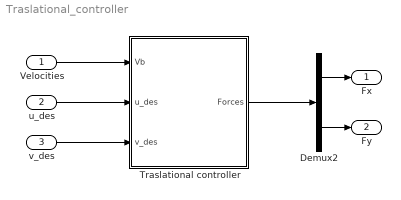
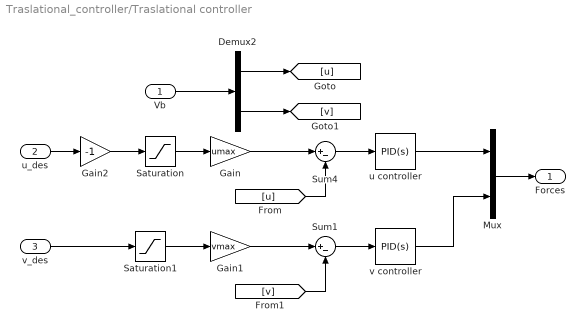
/*
 * Traslational_controller.cpp
 *
 * Academic License - for use in teaching, academic research, and meeting
 * course requirements at degree granting institutions only.  Not for
 * government, commercial, or other organizational use.
 *
 * Code generation for model "Traslational_controller".
 *
 * Model version              : 1.130
 * Simulink Coder version : 8.10 (R2016a) 10-Feb-2016
 * C++ source code generated on : Mon Aug 29 15:20:29 2016
 *
 * Target selection: grt.tlc
 * Note: GRT includes extra infrastructure and instrumentation for prototyping
 * Embedded hardware selection: ARM Compatible->ARM Cortex
 * Code generation objective: Execution efficiency
 * Validation result: Not run
 */

#include "Traslational_controller.h"
#include "Traslational_controller_private.h"

/*
 * This function updates continuous states using the ODE2 fixed-step
 * solver algorithm
 */
void Traslational_controllerModelClass::rt_ertODEUpdateContinuousStates
  (RTWSolverInfo *si )
{
  time_T tnew = rtsiGetSolverStopTime(si);
  time_T h = rtsiGetStepSize(si);
  real_T *x = rtsiGetContStates(si);
  ODE2_IntgData *id = (ODE2_IntgData *)rtsiGetSolverData(si);
  real_T *y = id->y;
  real_T *f0 = id->f[0];
  real_T *f1 = id->f[1];
  real_T temp;
  int_T i;
  int_T nXc = 4;
  rtsiSetSimTimeStep(si,MINOR_TIME_STEP);

  /* Save the state values at time t in y, we'll use x as ynew. */
  (void) memcpy(y, x,
                (uint_T)nXc*sizeof(real_T));

  /* Assumes that rtsiSetT and ModelOutputs are up-to-date */
  /* f0 = f(t,y) */
  rtsiSetdX(si, f0);
  Traslational_controller_derivatives();

  /* f1 = f(t + h, y + h*f0) */
  for (i = 0; i < nXc; i++) {
    x[i] = y[i] + (h*f0[i]);
  }

  rtsiSetT(si, tnew);
  rtsiSetdX(si, f1);
  this->step();
  Traslational_controller_derivatives();

  /* tnew = t + h
     ynew = y + (h/2)*(f0 + f1) */
  temp = 0.5*h;
  for (i = 0; i < nXc; i++) {
    x[i] = y[i] + temp*(f0[i] + f1[i]);
  }

  rtsiSetSimTimeStep(si,MAJOR_TIME_STEP);
}

/* Model step function */
void Traslational_controllerModelClass::step()
{
  real_T rtb_Sum4;
  real_T rtb_Sum1;
  if (rtmIsMajorTimeStep((&Traslational_controller_M))) {
    /* set solver stop time */
    if (!((&Traslational_controller_M)->Timing.clockTick0+1)) {
      rtsiSetSolverStopTime(&(&Traslational_controller_M)->solverInfo,
                            (((&Traslational_controller_M)->Timing.clockTickH0 +
        1) * (&Traslational_controller_M)->Timing.stepSize0 * 4294967296.0));
    } else {
      rtsiSetSolverStopTime(&(&Traslational_controller_M)->solverInfo,
                            (((&Traslational_controller_M)->Timing.clockTick0 +
        1) * (&Traslational_controller_M)->Timing.stepSize0 +
        (&Traslational_controller_M)->Timing.clockTickH0 *
        (&Traslational_controller_M)->Timing.stepSize0 * 4294967296.0));
    }
  }                                    /* end MajorTimeStep */

  /* Update absolute time of base rate at minor time step */
  if (rtmIsMinorTimeStep((&Traslational_controller_M))) {
    (&Traslational_controller_M)->Timing.t[0] = rtsiGetT
      (&(&Traslational_controller_M)->solverInfo);
  }

  /* Gain: '<S1>/Gain2' incorporates:
   *  Inport: '<Root>/u_des'
   */
  rtb_Sum4 = Traslational_controller_P.Gain2_Gain *
    Traslational_controller_U.u_des;

  /* Saturate: '<S1>/Saturation' */
  if (rtb_Sum4 > Traslational_controller_P.Saturation_UpperSat) {
    rtb_Sum4 = Traslational_controller_P.Saturation_UpperSat;
  } else {
    if (rtb_Sum4 < Traslational_controller_P.Saturation_LowerSat) {
      rtb_Sum4 = Traslational_controller_P.Saturation_LowerSat;
    }
  }

  /* Sum: '<S1>/Sum4' incorporates:
   *  Gain: '<S1>/Gain'
   *  Inport: '<Root>/Velocities'
   *  Saturate: '<S1>/Saturation'
   */
  rtb_Sum4 = Traslational_controller_P.umax * rtb_Sum4 -
    Traslational_controller_U.Velocities[0];

  /* Gain: '<S2>/Filter Coefficient' incorporates:
   *  Gain: '<S2>/Derivative Gain'
   *  Integrator: '<S2>/Filter'
   *  Sum: '<S2>/SumD'
   */
  Traslational_controller_B.FilterCoefficient = (Traslational_controller_P.Kd_u *
    rtb_Sum4 - Traslational_controller_X.Filter_CSTATE) *
    Traslational_controller_P.N_tras;

  /* Outport: '<Root>/Fx' incorporates:
   *  Gain: '<S2>/Proportional Gain'
   *  Integrator: '<S2>/Integrator'
   *  Sum: '<S2>/Sum'
   */
  Traslational_controller_Y.Fx = (Traslational_controller_P.Kp_u * rtb_Sum4 +
    Traslational_controller_X.Integrator_CSTATE) +
    Traslational_controller_B.FilterCoefficient;

  /* Saturate: '<S1>/Saturation1' incorporates:
   *  Inport: '<Root>/v_des'
   */
  if (Traslational_controller_U.v_des >
      Traslational_controller_P.Saturation1_UpperSat) {
    rtb_Sum1 = Traslational_controller_P.Saturation1_UpperSat;
  } else if (Traslational_controller_U.v_des <
             Traslational_controller_P.Saturation1_LowerSat) {
    rtb_Sum1 = Traslational_controller_P.Saturation1_LowerSat;
  } else {
    rtb_Sum1 = Traslational_controller_U.v_des;
  }

  /* Sum: '<S1>/Sum1' incorporates:
   *  Gain: '<S1>/Gain1'
   *  Inport: '<Root>/Velocities'
   *  Saturate: '<S1>/Saturation1'
   */
  rtb_Sum1 = Traslational_controller_P.vmax * rtb_Sum1 -
    Traslational_controller_U.Velocities[1];

  /* Gain: '<S3>/Filter Coefficient' incorporates:
   *  Gain: '<S3>/Derivative Gain'
   *  Integrator: '<S3>/Filter'
   *  Sum: '<S3>/SumD'
   */
  Traslational_controller_B.FilterCoefficient_m =
    (Traslational_controller_P.Kd_v * rtb_Sum1 -
     Traslational_controller_X.Filter_CSTATE_j) *
    Traslational_controller_P.N_tras;

  /* Outport: '<Root>/Fy' incorporates:
   *  Gain: '<S3>/Proportional Gain'
   *  Integrator: '<S3>/Integrator'
   *  Sum: '<S3>/Sum'
   */
  Traslational_controller_Y.Fy = (Traslational_controller_P.Kp_v * rtb_Sum1 +
    Traslational_controller_X.Integrator_CSTATE_c) +
    Traslational_controller_B.FilterCoefficient_m;

  /* Gain: '<S2>/Integral Gain' */
  Traslational_controller_B.IntegralGain = Traslational_controller_P.Ki_u *
    rtb_Sum4;

  /* Gain: '<S3>/Integral Gain' */
  Traslational_controller_B.IntegralGain_j = Traslational_controller_P.Ki_v *
    rtb_Sum1;
  if (rtmIsMajorTimeStep((&Traslational_controller_M))) {
    rt_ertODEUpdateContinuousStates(&(&Traslational_controller_M)->solverInfo);

    /* Update absolute time for base rate */
    /* The "clockTick0" counts the number of times the code of this task has
     * been executed. The absolute time is the multiplication of "clockTick0"
     * and "Timing.stepSize0". Size of "clockTick0" ensures timer will not
     * overflow during the application lifespan selected.
     * Timer of this task consists of two 32 bit unsigned integers.
     * The two integers represent the low bits Timing.clockTick0 and the high bits
     * Timing.clockTickH0. When the low bit overflows to 0, the high bits increment.
     */
    if (!(++(&Traslational_controller_M)->Timing.clockTick0)) {
      ++(&Traslational_controller_M)->Timing.clockTickH0;
    }

    (&Traslational_controller_M)->Timing.t[0] = rtsiGetSolverStopTime
      (&(&Traslational_controller_M)->solverInfo);

    {
      /* Update absolute timer for sample time: [0.01s, 0.0s] */
      /* The "clockTick1" counts the number of times the code of this task has
       * been executed. The resolution of this integer timer is 0.01, which is the step size
       * of the task. Size of "clockTick1" ensures timer will not overflow during the
       * application lifespan selected.
       * Timer of this task consists of two 32 bit unsigned integers.
       * The two integers represent the low bits Timing.clockTick1 and the high bits
       * Timing.clockTickH1. When the low bit overflows to 0, the high bits increment.
       */
      (&Traslational_controller_M)->Timing.clockTick1++;
      if (!(&Traslational_controller_M)->Timing.clockTick1) {
        (&Traslational_controller_M)->Timing.clockTickH1++;
      }
    }
  }                                    /* end MajorTimeStep */
}
